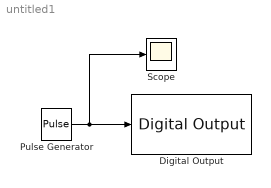
/*
 * Academic License - for use in teaching, academic research, and meeting
 * course requirements at degree granting institutions only.  Not for
 * government, commercial, or other organizational use.
 *
 * File: untitled1.c
 *
 * Code generated for Simulink model 'untitled1'.
 *
 * Model version                  : 1.0
 * Simulink Coder version         : 8.9 (R2015b) 13-Aug-2015
 * C/C++ source code generated on : Fri Oct 21 14:39:34 2016
 *
 * Target selection: ert.tlc
 * Embedded hardware selection: Atmel->AVR
 * Code generation objectives: Unspecified
 * Validation result: Not run
 */

#include "untitled1.h"
#include "untitled1_private.h"

/* Block states (auto storage) */
DW_untitled1_T untitled1_DW;

/* Real-time model */
RT_MODEL_untitled1_T untitled1_M_;
RT_MODEL_untitled1_T *const untitled1_M = &untitled1_M_;

/* Model step function */
void untitled1_step(void)
{
  real_T rtb_PulseGenerator;
  uint8_T rtb_PulseGenerator_0;

  /* DiscretePulseGenerator: '<Root>/Pulse Generator' */
  rtb_PulseGenerator = (untitled1_DW.clockTickCounter <
                        untitled1_P.PulseGenerator_Duty) &&
    (untitled1_DW.clockTickCounter >= 0L) ? untitled1_P.PulseGenerator_Amp : 0.0;
  if (untitled1_DW.clockTickCounter >= untitled1_P.PulseGenerator_Period - 1.0)
  {
    untitled1_DW.clockTickCounter = 0L;
  } else {
    untitled1_DW.clockTickCounter++;
  }

  /* End of DiscretePulseGenerator: '<Root>/Pulse Generator' */

  /* DataTypeConversion: '<S1>/Data Type Conversion' */
  if (rtb_PulseGenerator < 256.0) {
    if (rtb_PulseGenerator >= 0.0) {
      rtb_PulseGenerator_0 = (uint8_T)rtb_PulseGenerator;
    } else {
      rtb_PulseGenerator_0 = 0U;
    }
  } else {
    rtb_PulseGenerator_0 = MAX_uint8_T;
  }

  /* End of DataTypeConversion: '<S1>/Data Type Conversion' */

  /* S-Function (arduinodigitaloutput_sfcn): '<S1>/Digital Output' */
  MW_digitalWrite(untitled1_P.DigitalOutput_pinNumber, rtb_PulseGenerator_0);
}
